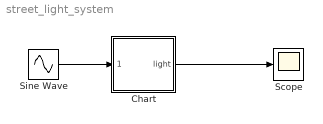
== stateflow chart street_light_system/Chart ==
  state Daytime
    light = 0;
  state Nighttime
    light = 1;
  (default) -> Daytime
  Nighttime -> Daytime : [light_level >  30]
  Daytime -> Nighttime : [light_level <= 30]
  data: light_level input double; light output double

/*
 * File: street_light_system.c
 *
 * Code generated for Simulink model 'street_light_system'.
 *
 * Model version                  : 1.6
 * Simulink Coder version         : 24.2 (R2024b) 21-Jun-2024
 * C/C++ source code generated on : Wed Jun  4 16:41:47 2025
 *
 * Target selection: ert.tlc
 * Embedded hardware selection: AMD->x86-64 (Windows64)
 * Code generation objectives:
 *    1. Execution efficiency
 *    2. RAM efficiency
 * Validation result: Not run
 */

#include "street_light_system.h"
#include "rtwtypes.h"
#include <math.h>

/* Named constants for Chart: '<Root>/Chart' */
#define IN_Daytime                     ((uint8_T)1U)
#define IN_Nighttime                   ((uint8_T)2U)

/* Block signals and states (default storage) */
DW rtDW;

/* Real-time model */
static RT_MODEL rtM_;
RT_MODEL *const rtM = &rtM_;

/* Model step function */
void street_light_system_step(void)
{
  real_T rtb_SineWave;

  /* Sin: '<Root>/Sine Wave' */
  if (rtDW.systemEnable != 0) {
    rtb_SineWave = ((rtM->Timing.clockTick0) * 0.1);
    rtDW.lastSin = sin(0.1 * rtb_SineWave);
    rtDW.lastCos = cos(0.1 * rtb_SineWave);
    rtDW.systemEnable = 0;
  }

  rtb_SineWave = ((rtDW.lastSin * 0.99995000041666526 + rtDW.lastCos *
                   -0.0099998333341666662) * 0.99995000041666526 + (rtDW.lastCos
    * 0.99995000041666526 - rtDW.lastSin * -0.0099998333341666662) *
                  0.0099998333341666662) * 50.0 + 50.0;

  /* End of Sin: '<Root>/Sine Wave' */

  /* Chart: '<Root>/Chart' */
  if (rtDW.is_active_c3_street_light_syste == 0) {
    rtDW.is_active_c3_street_light_syste = 1U;
    rtDW.is_c3_street_light_system = IN_Daytime;
  } else if (rtDW.is_c3_street_light_system == IN_Daytime) {
    if (rtb_SineWave <= 30.0) {
      rtDW.is_c3_street_light_system = IN_Nighttime;
    }

    /* case IN_Nighttime: */
  } else if (rtb_SineWave > 30.0) {
    rtDW.is_c3_street_light_system = IN_Daytime;
  }

  /* End of Chart: '<Root>/Chart' */

  /* Update for Sin: '<Root>/Sine Wave' */
  rtb_SineWave = rtDW.lastSin;
  rtDW.lastSin = rtDW.lastSin * 0.99995000041666526 + rtDW.lastCos *
    0.0099998333341666662;
  rtDW.lastCos = rtDW.lastCos * 0.99995000041666526 - rtb_SineWave *
    0.0099998333341666662;

  /* Update absolute time for base rate */
  /* The "clockTick0" counts the number of times the code of this task has
   * been executed. The resolution of this integer timer is 0.1, which is the step size
   * of the task. Size of "clockTick0" ensures timer will not overflow during the
   * application lifespan selected.
   */
  rtM->Timing.clockTick0++;
}
